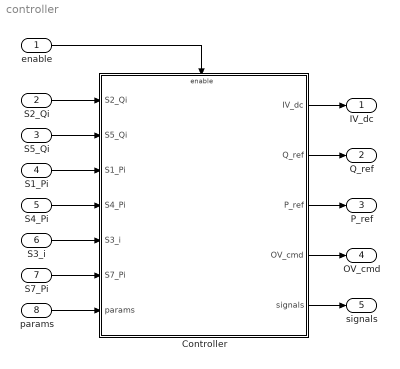
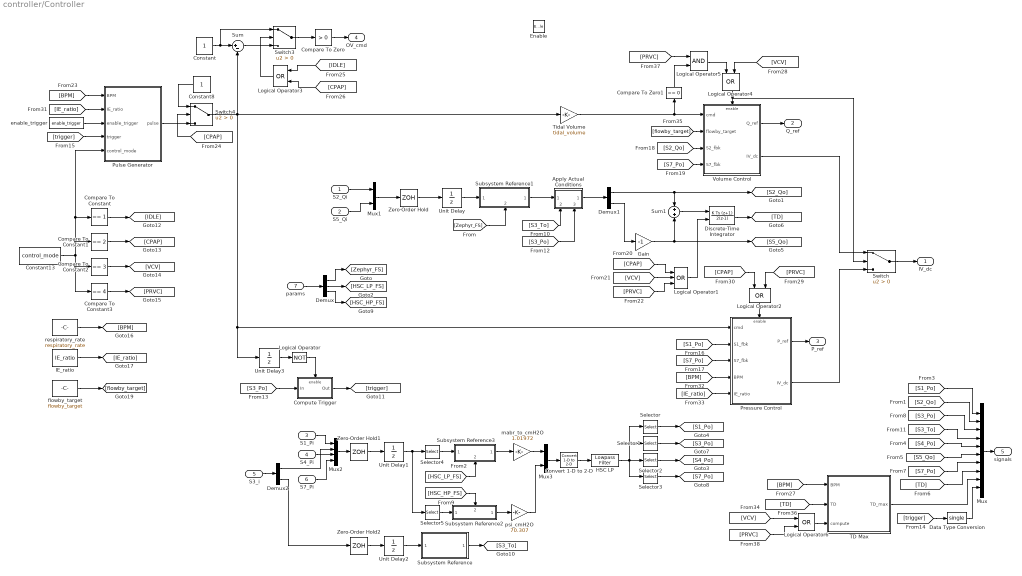
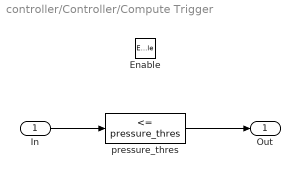
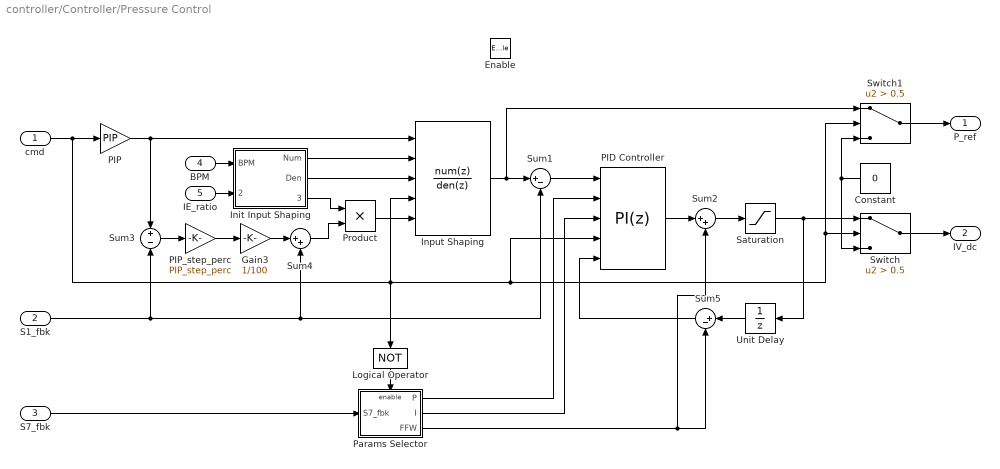
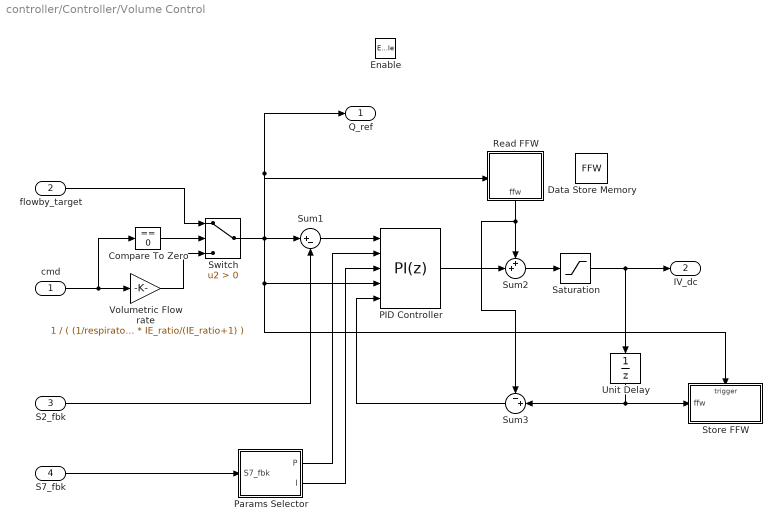
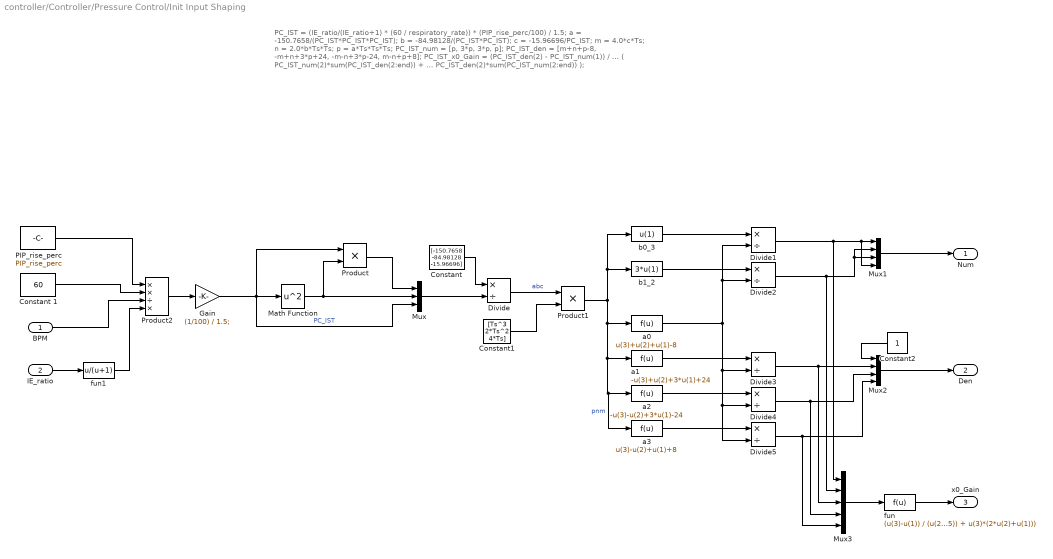
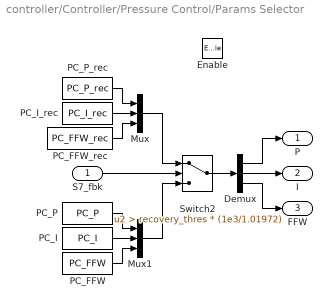
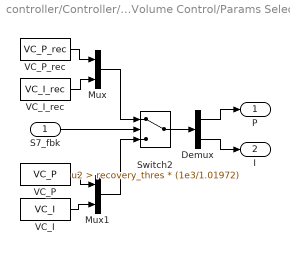
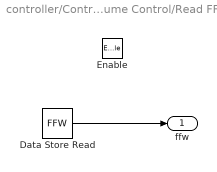
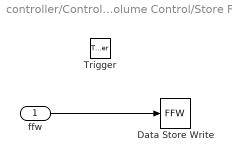
== stateflow chart controller/Controller/TD Max ==
  state IDLE
    entry:
    TD_max = realmax('single');
  state COMPUTE_MAX
    entry:
    tmp_max = TD;
    during:
    tmp_max = max(tmp_max, TD);
  (default) -> IDLE
  IDLE -> COMPUTE_MAX : [compute]
  COMPUTE_MAX -> IDLE [order 1] : [~compute]
  COMPUTE_MAX -> COMPUTE_MAX [order 2] : after(2*(60/BPM), sec)/{TD_max = tmp_max;}
  data: BPM input single; compute input boolean; TD input single; TD_max output single; tmp_max local single

== stateflow chart controller/Controller/Pulse Generator ==
  state TRIGGER_WAIT
    entry:
    pulse = 0;
  state TRIGGER_INSPIRATION
    entry:
    pulse = 1;
  state INSPIRATION
    entry:
    pulse = 1;
  state EXPIRATION
    entry:
    pulse = 0;
  TRIGGER_WAIT -> INSPIRATION [order 2] : [~enable_trigger]
  INSPIRATION -> TRIGGER_WAIT [order 3] : [enable_trigger]
  TRIGGER_INSPIRATION -> TRIGGER_WAIT [order 1] : after(IE_ratio/(IE_ratio+1) * (60/BPM), sec)
  TRIGGER_WAIT -> TRIGGER_INSPIRATION [order 1] : [trigger]
  (default) -> INSPIRATION
  INSPIRATION -> INSPIRATION [order 1] : [hasChanged(control_mode)]
  TRIGGER_INSPIRATION -> INSPIRATION [order 2] : [~enable_trigger]
  INSPIRATION -> EXPIRATION [order 2] : after(IE_ratio/(IE_ratio+1) * (60/BPM), sec)
  EXPIRATION -> INSPIRATION [order 1] : [hasChanged(control_mode)]
  EXPIRATION -> INSPIRATION [order 2] : after(1/(IE_ratio+1) * (60/BPM), sec)
  data: BPM input single; IE_ratio input single; pulse output single; control_mode input; enable_trigger input boolean; trigger input boolean

//
// Non-Degree Granting Education License -- for use at non-degree
// granting, nonprofit, educational organizations only. Not for
// government, commercial, or other organizational use.
//
// File: controller.cpp
//
// Code generated for Simulink model 'controller'.
//
// Model version                  : 1.520
// Simulink Coder version         : 9.3 (R2020a) 18-Nov-2019
// C/C++ source code generated on : Mon May 11 13:55:17 2020
//
// Target selection: ert.tlc
// Embedded hardware selection: Intel->x86-64 (Windows64)
// Code generation objectives: Unspecified
// Validation result: Not run
//
#include "controller.h"
#include "controller_private.h"

// Named constants for Chart: '<S1>/Pulse Generator'
const uint8_T controll_IN_TRIGGER_INSPIRATION = 3U;
const uint8_T controller_IN_EXPIRATION = 1U;
const uint8_T controller_IN_INSPIRATION = 2U;
const uint8_T controller_IN_TRIGGER_WAIT = 4U;

// Named constants for Chart: '<S1>/TD Max'
const uint8_T controller_IN_COMPUTE_MAX = 1U;
const uint8_T controller_IN_IDLE = 2U;
void controllerModelClass::controller_SystemCore_release
  (b_dspcodegen_BiquadFilter_con_T *obj)
{
  if (obj->isInitialized == 1) {
    obj->isInitialized = 2;
  }
}

void controllerModelClass::cont_LPHPFilterBase_releaseImpl
  (dsp_LowpassFilter_controller_T *obj)
{
  controller_SystemCore_release(obj->FilterObj);
  obj->NumChannels = -1;
}

void controllerModelClass::contr_SystemCore_releaseWrapper
  (dsp_LowpassFilter_controller_T *obj)
{
  if (obj->isSetupComplete) {
    cont_LPHPFilterBase_releaseImpl(obj);
  }
}

void controllerModelClass::controller_SystemCore_release_j
  (dsp_LowpassFilter_controller_T *obj)
{
  if (obj->isInitialized == 1) {
    contr_SystemCore_releaseWrapper(obj);
  }
}

void controllerModelClass::controller_SystemCore_delete_j
  (dsp_LowpassFilter_controller_T *obj)
{
  controller_SystemCore_release_j(obj);
}

void controllerModelClass::matlabCodegenHandle_matlabCod_j
  (dsp_LowpassFilter_controller_T *obj)
{
  if (!obj->matlabCodegenIsDeleted) {
    obj->matlabCodegenIsDeleted = true;
    controller_SystemCore_delete_j(obj);
  }
}

void controllerModelClass::controller_SystemCore_delete
  (b_dspcodegen_BiquadFilter_con_T *obj)
{
  controller_SystemCore_release(obj);
}

void controllerModelClass::matlabCodegenHandle_matlabCodeg
  (b_dspcodegen_BiquadFilter_con_T *obj)
{
  if (!obj->matlabCodegenIsDeleted) {
    obj->matlabCodegenIsDeleted = true;
    controller_SystemCore_delete(obj);
  }
}

// Model step function
void controllerModelClass::step()
{
  real32_T rtb_Divide5;
  real32_T rtb_SumFdbk;
  real32_T rtb_IProdOut_d;
  real32_T rtb_SumFdbk_i;
  real32_T rtb_psi_cmH2O;
  real32_T rtb_PIP;
  ZCEventType zcEvent;
  boolean_T rtb_Compare_k;
  boolean_T rtb_LogicalOperator1;
  boolean_T rtb_Compare_m;
  boolean_T rtb_Compare_f;
  real32_T rtb_Divide;
  int32_T i;
  real32_T rtb_TmpSignalConversionAtHSCL_0;
  real32_T rtb_pnm_idx_0;
  real32_T rtb_pnm_idx_1;
  real32_T rtb_pnm_idx_2;
  real32_T rtb_TmpSignalConversionAtHSCL_1;
  real32_T rtb_TmpSignalConversionAtHSCL_2;
  real32_T rtb_TmpSignalConversionAtHSCL_3;

  // Outputs for Enabled SubSystem: '<Root>/Controller' incorporates:
  //   EnablePort: '<S1>/Enable'

  // Inport: '<Root>/enable'
  if (controller_U.enable) {
    if (!controller_DW.Controller_MODE) {
      // InitializeConditions for UnitDelay: '<S1>/Unit Delay1'
      controller_DW.UnitDelay1_DSTATE[0] =
        controller_P.UnitDelay1_InitialCondition[0];
      controller_DW.UnitDelay1_DSTATE[1] =
        controller_P.UnitDelay1_InitialCondition[1];
      controller_DW.UnitDelay1_DSTATE[2] =
        controller_P.UnitDelay1_InitialCondition[2];
      controller_DW.UnitDelay1_DSTATE[3] =
        controller_P.UnitDelay1_InitialCondition[3];

      // InitializeConditions for UnitDelay: '<S1>/Unit Delay2'
      controller_DW.UnitDelay2_DSTATE = controller_P.UnitDelay2_InitialCondition;

      // InitializeConditions for UnitDelay: '<S1>/Unit Delay'
      controller_DW.UnitDelay_DSTATE[0] =
        controller_P.UnitDelay_InitialCondition_g;
      controller_DW.UnitDelay_DSTATE[1] =
        controller_P.UnitDelay_InitialCondition_g;

      // InitializeConditions for UnitDelay: '<S1>/Unit Delay3'
      controller_DW.UnitDelay3_DSTATE = controller_P.UnitDelay3_InitialCondition;

      // InitializeConditions for DiscreteIntegrator: '<S1>/Discrete-Time Integrator' 
      controller_DW.DiscreteTimeIntegrator_DSTATE =
        controller_P.DiscreteTimeIntegrator_IC;
      controller_DW.DiscreteTimeIntegrator_PrevRese = 2;

      // InitializeConditions for MATLABSystem: '<S1>/HSC LP'
      if (controller_DW.obj.FilterObj->isInitialized == 1) {
        // System object Initialization function: dsp.BiquadFilter
        for (i = 0; i < 16; i++) {
          controller_DW.obj.FilterObj->cSFunObject.W0_ZERO_STATES[i] =
            controller_DW.obj.FilterObj->cSFunObject.P0_ICRTP;
        }

        for (i = 0; i < 16; i++) {
          controller_DW.obj.FilterObj->cSFunObject.W1_POLE_STATES[i] =
            controller_DW.obj.FilterObj->cSFunObject.P5_IC2RTP;
        }
      }

      // End of InitializeConditions for MATLABSystem: '<S1>/HSC LP'

      // SystemReset for Chart: '<S1>/Pulse Generator'
      controller_DW.doneDoubleBufferReInit = false;

      // Chart: '<S1>/Pulse Generator'
      controller_DW.is_c3_controller = controller_IN_INSPIRATION;
      controller_DW.temporalCounter_i1_c = 0U;

      // SystemReset for Chart: '<S1>/TD Max'
      controller_DW.temporalCounter_i1 = 0U;

      // Chart: '<S1>/TD Max'
      controller_DW.is_c1_controller = controller_IN_IDLE;
      controller_B.TD_max = 3.402823466E+38F;

      // Enable for Chart: '<S1>/Pulse Generator'
      controller_DW.presentTicks_j = (&controller_M)->Timing.clockTick0;
      controller_DW.previousTicks_j = controller_DW.presentTicks_j;

      // Enable for Chart: '<S1>/TD Max'
      controller_DW.presentTicks = (&controller_M)->Timing.clockTick0;
      controller_DW.previousTicks = controller_DW.presentTicks;
      controller_DW.Controller_MODE = true;
    }

    // SignalConversion generated from: '<S1>/HSC LP' incorporates:
    //   Bias: '<S15>/Bias'
    //   Bias: '<S16>/Bias'
    //   Gain: '<S15>/Gain'
    //   Gain: '<S15>/Gain1'
    //   Gain: '<S16>/Gain'
    //   Gain: '<S16>/Gain1'
    //   Gain: '<S1>/mabr_to_cmH2O'
    //   Gain: '<S1>/psi_cmH2O'
    //   Inport: '<Root>/params'
    //   Product: '<S15>/Product'
    //   Product: '<S16>/Product'
    //   Sum: '<S16>/Sum'
    //   UnitDelay: '<S1>/Unit Delay1'

    rtb_TmpSignalConversionAtHSCL_1 = ((controller_P.Gain_Gain_h *
      controller_DW.UnitDelay1_DSTATE[0] + controller_P.Bias_Bias) *
      controller_U.params[1] * controller_P.Gain1_Gain - controller_U.params[1])
      * controller_P.mabr_to_cmH2O_Gain;
    rtb_TmpSignalConversionAtHSCL_2 = ((controller_P.Gain_Gain_h *
      controller_DW.UnitDelay1_DSTATE[1] + controller_P.Bias_Bias) *
      controller_U.params[1] * controller_P.Gain1_Gain - controller_U.params[1])
      * controller_P.mabr_to_cmH2O_Gain;
    rtb_TmpSignalConversionAtHSCL_3 = ((controller_P.Gain_Gain_h *
      controller_DW.UnitDelay1_DSTATE[2] + controller_P.Bias_Bias) *
      controller_U.params[1] * controller_P.Gain1_Gain - controller_U.params[1])
      * controller_P.mabr_to_cmH2O_Gain;
    rtb_TmpSignalConversionAtHSCL_0 = (controller_P.Gain_Gain_i *
      controller_DW.UnitDelay1_DSTATE[3] + controller_P.Bias_Bias_h) *
      controller_U.params[2] * controller_P.Gain1_Gain_d *
      controller_P.psi_cmH2O_Gain;

    // MATLABSystem: '<S1>/HSC LP'
    if (controller_DW.obj.FilterObj->isInitialized != 1) {
      controller_DW.obj.FilterObj->isSetupComplete = false;
      controller_DW.obj.FilterObj->isInitialized = 1;
      controller_DW.obj.FilterObj->isSetupComplete = true;

      // System object Initialization function: dsp.BiquadFilter
      for (i = 0; i < 16; i++) {
        controller_DW.obj.FilterObj->cSFunObject.W0_ZERO_STATES[i] =
          controller_DW.obj.FilterObj->cSFunObject.P0_ICRTP;
      }

      for (i = 0; i < 16; i++) {
        controller_DW.obj.FilterObj->cSFunObject.W1_POLE_STATES[i] =
          controller_DW.obj.FilterObj->cSFunObject.P5_IC2RTP;
      }
    }

    // System object Outputs function: dsp.BiquadFilter
    rtb_Divide = controller_DW.obj.FilterObj->cSFunObject.P1_RTP1COEFF[0] *
      rtb_TmpSignalConversionAtHSCL_1;
    rtb_Divide += controller_DW.obj.FilterObj->cSFunObject.P1_RTP1COEFF[1] *
      controller_DW.obj.FilterObj->cSFunObject.W0_ZERO_STATES[0];
    rtb_Divide += controller_DW.obj.FilterObj->cSFunObject.P1_RTP1COEFF[2] *
      controller_DW.obj.FilterObj->cSFunObject.W0_ZERO_STATES[1];
    rtb_SumFdbk_i = rtb_Divide -
      controller_DW.obj.FilterObj->cSFunObject.P2_RTP2COEFF[0] *
      controller_DW.obj.FilterObj->cSFunObject.W1_POLE_STATES[0];
    rtb_SumFdbk_i -= controller_DW.obj.FilterObj->cSFunObject.P2_RTP2COEFF[1] *
      controller_DW.obj.FilterObj->cSFunObject.W1_POLE_STATES[1];
    controller_DW.obj.FilterObj->cSFunObject.W0_ZERO_STATES[1] =
      controller_DW.obj.FilterObj->cSFunObject.W0_ZERO_STATES[0];
    controller_DW.obj.FilterObj->cSFunObject.W0_ZERO_STATES[0] =
      rtb_TmpSignalConversionAtHSCL_1;
    controller_DW.obj.FilterObj->cSFunObject.W1_POLE_STATES[1] =
      controller_DW.obj.FilterObj->cSFunObject.W1_POLE_STATES[0];
    controller_DW.obj.FilterObj->cSFunObject.W1_POLE_STATES[0] = rtb_SumFdbk_i;
    rtb_psi_cmH2O = rtb_SumFdbk_i;
    rtb_Divide = controller_DW.obj.FilterObj->cSFunObject.P1_RTP1COEFF[3] *
      rtb_SumFdbk_i;
    rtb_Divide += controller_DW.obj.FilterObj->cSFunObject.P1_RTP1COEFF[4] *
      controller_DW.obj.FilterObj->cSFunObject.W0_ZERO_STATES[2];
    rtb_Divide += controller_DW.obj.FilterObj->cSFunObject.P1_RTP1COEFF[5] *
      controller_DW.obj.FilterObj->cSFunObject.W0_ZERO_STATES[3];
    rtb_SumFdbk_i = rtb_Divide -
      controller_DW.obj.FilterObj->cSFunObject.P2_RTP2COEFF[2] *
      controller_DW.obj.FilterObj->cSFunObject.W1_POLE_STATES[2];
    rtb_SumFdbk_i -= controller_DW.obj.FilterObj->cSFunObject.P2_RTP2COEFF[3] *
      controller_DW.obj.FilterObj->cSFunObject.W1_POLE_STATES[3];
    controller_DW.obj.FilterObj->cSFunObject.W0_ZERO_STATES[3] =
      controller_DW.obj.FilterObj->cSFunObject.W0_ZERO_STATES[2];
    controller_DW.obj.FilterObj->cSFunObject.W0_ZERO_STATES[2] = rtb_psi_cmH2O;
    controller_DW.obj.FilterObj->cSFunObject.W1_POLE_STATES[3] =
      controller_DW.obj.FilterObj->cSFunObject.W1_POLE_STATES[2];
    controller_DW.obj.FilterObj->cSFunObject.W1_POLE_STATES[2] = rtb_SumFdbk_i;
    rtb_TmpSignalConversionAtHSCL_1 = rtb_SumFdbk_i;
    rtb_Divide = controller_DW.obj.FilterObj->cSFunObject.P1_RTP1COEFF[0] *
      rtb_TmpSignalConversionAtHSCL_2;
    rtb_Divide += controller_DW.obj.FilterObj->cSFunObject.P1_RTP1COEFF[1] *
      controller_DW.obj.FilterObj->cSFunObject.W0_ZERO_STATES[4];
    rtb_Divide += controller_DW.obj.FilterObj->cSFunObject.P1_RTP1COEFF[2] *
      controller_DW.obj.FilterObj->cSFunObject.W0_ZERO_STATES[5];
    rtb_SumFdbk_i = rtb_Divide -
      controller_DW.obj.FilterObj->cSFunObject.P2_RTP2COEFF[0] *
      controller_DW.obj.FilterObj->cSFunObject.W1_POLE_STATES[4];
    rtb_SumFdbk_i -= controller_DW.obj.FilterObj->cSFunObject.P2_RTP2COEFF[1] *
      controller_DW.obj.FilterObj->cSFunObject.W1_POLE_STATES[5];
    controller_DW.obj.FilterObj->cSFunObject.W0_ZERO_STATES[5] =
      controller_DW.obj.FilterObj->cSFunObject.W0_ZERO_STATES[4];
    controller_DW.obj.FilterObj->cSFunObject.W0_ZERO_STATES[4] =
      rtb_TmpSignalConversionAtHSCL_2;
    controller_DW.obj.FilterObj->cSFunObject.W1_POLE_STATES[5] =
      controller_DW.obj.FilterObj->cSFunObject.W1_POLE_STATES[4];
    controller_DW.obj.FilterObj->cSFunObject.W1_POLE_STATES[4] = rtb_SumFdbk_i;
    rtb_psi_cmH2O = rtb_SumFdbk_i;
    rtb_Divide = controller_DW.obj.FilterObj->cSFunObject.P1_RTP1COEFF[3] *
      rtb_SumFdbk_i;
    rtb_Divide += controller_DW.obj.FilterObj->cSFunObject.P1_RTP1COEFF[4] *
      controller_DW.obj.FilterObj->cSFunObject.W0_ZERO_STATES[6];
    rtb_Divide += controller_DW.obj.FilterObj->cSFunObject.P1_RTP1COEFF[5] *
      controller_DW.obj.FilterObj->cSFunObject.W0_ZERO_STATES[7];
    rtb_SumFdbk_i = rtb_Divide -
      controller_DW.obj.FilterObj->cSFunObject.P2_RTP2COEFF[2] *
      controller_DW.obj.FilterObj->cSFunObject.W1_POLE_STATES[6];
    rtb_SumFdbk_i -= controller_DW.obj.FilterObj->cSFunObject.P2_RTP2COEFF[3] *
      controller_DW.obj.FilterObj->cSFunObject.W1_POLE_STATES[7];
    controller_DW.obj.FilterObj->cSFunObject.W0_ZERO_STATES[7] =
      controller_DW.obj.FilterObj->cSFunObject.W0_ZERO_STATES[6];
    controller_DW.obj.FilterObj->cSFunObject.W0_ZERO_STATES[6] = rtb_psi_cmH2O;
    controller_DW.obj.FilterObj->cSFunObject.W1_POLE_STATES[7] =
      controller_DW.obj.FilterObj->cSFunObject.W1_POLE_STATES[6];
    controller_DW.obj.FilterObj->cSFunObject.W1_POLE_STATES[6] = rtb_SumFdbk_i;
    rtb_IProdOut_d = rtb_SumFdbk_i;
    rtb_Divide = controller_DW.obj.FilterObj->cSFunObject.P1_RTP1COEFF[0] *
      rtb_TmpSignalConversionAtHSCL_3;
    rtb_Divide += controller_DW.obj.FilterObj->cSFunObject.P1_RTP1COEFF[1] *
      controller_DW.obj.FilterObj->cSFunObject.W0_ZERO_STATES[8];
    rtb_Divide += controller_DW.obj.FilterObj->cSFunObject.P1_RTP1COEFF[2] *
      controller_DW.obj.FilterObj->cSFunObject.W0_ZERO_STATES[9];
    rtb_SumFdbk_i = rtb_Divide -
      controller_DW.obj.FilterObj->cSFunObject.P2_RTP2COEFF[0] *
      controller_DW.obj.FilterObj->cSFunObject.W1_POLE_STATES[8];
    rtb_SumFdbk_i -= controller_DW.obj.FilterObj->cSFunObject.P2_RTP2COEFF[1] *
      controller_DW.obj.FilterObj->cSFunObject.W1_POLE_STATES[9];
    controller_DW.obj.FilterObj->cSFunObject.W0_ZERO_STATES[9] =
      controller_DW.obj.FilterObj->cSFunObject.W0_ZERO_STATES[8];
    controller_DW.obj.FilterObj->cSFunObject.W0_ZERO_STATES[8] =
      rtb_TmpSignalConversionAtHSCL_3;
    controller_DW.obj.FilterObj->cSFunObject.W1_POLE_STATES[9] =
      controller_DW.obj.FilterObj->cSFunObject.W1_POLE_STATES[8];
    controller_DW.obj.FilterObj->cSFunObject.W1_POLE_STATES[8] = rtb_SumFdbk_i;
    rtb_psi_cmH2O = rtb_SumFdbk_i;
    rtb_Divide = controller_DW.obj.FilterObj->cSFunObject.P1_RTP1COEFF[3] *
      rtb_SumFdbk_i;
    rtb_Divide += controller_DW.obj.FilterObj->cSFunObject.P1_RTP1COEFF[4] *
      controller_DW.obj.FilterObj->cSFunObject.W0_ZERO_STATES[10];
    rtb_Divide += controller_DW.obj.FilterObj->cSFunObject.P1_RTP1COEFF[5] *
      controller_DW.obj.FilterObj->cSFunObject.W0_ZERO_STATES[11];
    rtb_SumFdbk_i = rtb_Divide -
      controller_DW.obj.FilterObj->cSFunObject.P2_RTP2COEFF[2] *
      controller_DW.obj.FilterObj->cSFunObject.W1_POLE_STATES[10];
    rtb_SumFdbk_i -= controller_DW.obj.FilterObj->cSFunObject.P2_RTP2COEFF[3] *
      controller_DW.obj.FilterObj->cSFunObject.W1_POLE_STATES[11];
    controller_DW.obj.FilterObj->cSFunObject.W0_ZERO_STATES[11] =
      controller_DW.obj.FilterObj->cSFunObject.W0_ZERO_STATES[10];
    controller_DW.obj.FilterObj->cSFunObject.W0_ZERO_STATES[10] = rtb_psi_cmH2O;
    controller_DW.obj.FilterObj->cSFunObject.W1_POLE_STATES[11] =
      controller_DW.obj.FilterObj->cSFunObject.W1_POLE_STATES[10];
    controller_DW.obj.FilterObj->cSFunObject.W1_POLE_STATES[10] = rtb_SumFdbk_i;

    // Outport: '<Root>/signals' incorporates:
    //   MATLABSystem: '<S1>/HSC LP'
    //   SignalConversion generated from: '<S1>/signals'

    controller_Y.signals[4] = rtb_SumFdbk_i;

    // MATLABSystem: '<S1>/HSC LP'
    rtb_Divide = controller_DW.obj.FilterObj->cSFunObject.P1_RTP1COEFF[0] *
      rtb_TmpSignalConversionAtHSCL_0;
    rtb_Divide += controller_DW.obj.FilterObj->cSFunObject.P1_RTP1COEFF[1] *
      controller_DW.obj.FilterObj->cSFunObject.W0_ZERO_STATES[12];
    rtb_Divide += controller_DW.obj.FilterObj->cSFunObject.P1_RTP1COEFF[2] *
      controller_DW.obj.FilterObj->cSFunObject.W0_ZERO_STATES[13];
    rtb_SumFdbk_i = rtb_Divide -
      controller_DW.obj.FilterObj->cSFunObject.P2_RTP2COEFF[0] *
      controller_DW.obj.FilterObj->cSFunObject.W1_POLE_STATES[12];
    rtb_SumFdbk_i -= controller_DW.obj.FilterObj->cSFunObject.P2_RTP2COEFF[1] *
      controller_DW.obj.FilterObj->cSFunObject.W1_POLE_STATES[13];
    controller_DW.obj.FilterObj->cSFunObject.W0_ZERO_STATES[13] =
      controller_DW.obj.FilterObj->cSFunObject.W0_ZERO_STATES[12];
    controller_DW.obj.FilterObj->cSFunObject.W0_ZERO_STATES[12] =
      rtb_TmpSignalConversionAtHSCL_0;
    controller_DW.obj.FilterObj->cSFunObject.W1_POLE_STATES[13] =
      controller_DW.obj.FilterObj->cSFunObject.W1_POLE_STATES[12];
    controller_DW.obj.FilterObj->cSFunObject.W1_POLE_STATES[12] = rtb_SumFdbk_i;
    rtb_psi_cmH2O = rtb_SumFdbk_i;
    rtb_Divide = controller_DW.obj.FilterObj->cSFunObject.P1_RTP1COEFF[3] *
      rtb_SumFdbk_i;
    rtb_Divide += controller_DW.obj.FilterObj->cSFunObject.P1_RTP1COEFF[4] *
      controller_DW.obj.FilterObj->cSFunObject.W0_ZERO_STATES[14];
    rtb_Divide += controller_DW.obj.FilterObj->cSFunObject.P1_RTP1COEFF[5] *
      controller_DW.obj.FilterObj->cSFunObject.W0_ZERO_STATES[15];
    rtb_SumFdbk_i = rtb_Divide -
      controller_DW.obj.FilterObj->cSFunObject.P2_RTP2COEFF[2] *
      controller_DW.obj.FilterObj->cSFunObject.W1_POLE_STATES[14];
    rtb_SumFdbk_i -= controller_DW.obj.FilterObj->cSFunObject.P2_RTP2COEFF[3] *
      controller_DW.obj.FilterObj->cSFunObject.W1_POLE_STATES[15];
    controller_DW.obj.FilterObj->cSFunObject.W0_ZERO_STATES[15] =
      controller_DW.obj.FilterObj->cSFunObject.W0_ZERO_STATES[14];
    controller_DW.obj.FilterObj->cSFunObject.W0_ZERO_STATES[14] = rtb_psi_cmH2O;
    controller_DW.obj.FilterObj->cSFunObject.W1_POLE_STATES[15] =
      controller_DW.obj.FilterObj->cSFunObject.W1_POLE_STATES[14];
    controller_DW.obj.FilterObj->cSFunObject.W1_POLE_STATES[14] = rtb_SumFdbk_i;
    rtb_TmpSignalConversionAtHSCL_0 = rtb_SumFdbk_i;

    // Bias: '<S13>/Bias' incorporates:
    //   Gain: '<S13>/Gain'
    //   UnitDelay: '<S1>/Unit Delay2'

    rtb_SumFdbk_i = controller_P.Gain_Gain_m * controller_DW.UnitDelay2_DSTATE +
      controller_P.Bias_Bias_b;

    // Product: '<S2>/Divide1' incorporates:
    //   Bias: '<S2>/Bias'
    //   Constant: '<S2>/Constant1'
    //   Gain: '<S2>/cmH2O to Pa'
    //   MATLABSystem: '<S1>/HSC LP'

    rtb_psi_cmH2O = controller_P.Constant1_Value_k /
      (controller_P.cmH2OtoPa_Gain * rtb_IProdOut_d + controller_P.Bias_Bias_j);

    // Product: '<S2>/Divide' incorporates:
    //   Bias: '<S2>/K'
    //   Constant: '<S2>/Constant'

    rtb_Divide = (rtb_SumFdbk_i + controller_P.K_Bias) /
      controller_P.Constant_Value_h;

    // Product: '<S2>/Product1' incorporates:
    //   Bias: '<S14>/Bias'
    //   Gain: '<S14>/Gain'
    //   Gain: '<S14>/Gain1'
    //   Inport: '<Root>/params'
    //   Product: '<S14>/Product'
    //   Product: '<S2>/Product'
    //   UnitDelay: '<S1>/Unit Delay'

    rtb_TmpSignalConversionAtHSCL_3 = (controller_P.Gain_Gain_f *
      controller_DW.UnitDelay_DSTATE[0] + controller_P.Bias_Bias_l) *
      controller_U.params[0] * controller_P.Gain1_Gain_e * rtb_Divide *
      rtb_psi_cmH2O;

    // Outputs for Enabled SubSystem: '<S1>/Compute Trigger' incorporates:
    //   EnablePort: '<S9>/Enable'

    // Logic: '<S1>/Logical Operator' incorporates:
    //   UnitDelay: '<S1>/Unit Delay3'

    if (!(controller_DW.UnitDelay3_DSTATE != 0.0F)) {
      controller_DW.ComputeTrigger_MODE = true;

      // RelationalOperator: '<S19>/Compare' incorporates:
      //   Constant: '<S19>/Constant'
      //   MATLABSystem: '<S1>/HSC LP'

      controller_B.Compare_m = (rtb_IProdOut_d <=
        controller_P.pressure_thres_const);
    } else {
      if (controller_DW.ComputeTrigger_MODE) {
        // Disable for Outport: '<S9>/Out'
        controller_B.Compare_m = controller_P.Out_Y0;
        controller_DW.ComputeTrigger_MODE = false;
      }
    }

    // End of Logic: '<S1>/Logical Operator'
    // End of Outputs for SubSystem: '<S1>/Compute Trigger'

    // Gain: '<S1>/Gain' incorporates:
    //   Bias: '<S14>/Bias'
    //   Gain: '<S14>/Gain'
    //   Gain: '<S14>/Gain1'
    //   Inport: '<Root>/params'
    //   Product: '<S14>/Product'
    //   Product: '<S2>/Product'
    //   Product: '<S2>/Product1'
    //   UnitDelay: '<S1>/Unit Delay'

    rtb_TmpSignalConversionAtHSCL_2 = (controller_P.Gain_Gain_f *
      controller_DW.UnitDelay_DSTATE[1] + controller_P.Bias_Bias_l) *
      controller_U.params[0] * controller_P.Gain1_Gain_e * rtb_Divide *
      rtb_psi_cmH2O * controller_P.Gain_Gain_e;

    // RelationalOperator: '<S4>/Compare' incorporates:
    //   Constant: '<S4>/Constant'

    rtb_Compare_k = (controller_P.Controller_control_mode ==
                     controller_P.CompareToConstant1_const);

    // RelationalOperator: '<S5>/Compare' incorporates:
    //   Constant: '<S5>/Constant'

    rtb_Compare_m = (controller_P.Controller_control_mode ==
                     controller_P.CompareToConstant2_const);

    // RelationalOperator: '<S6>/Compare' incorporates:
    //   Constant: '<S6>/Constant'

    rtb_Compare_f = (controller_P.Controller_control_mode ==
                     controller_P.CompareToConstant3_const);

    // Logic: '<S1>/Logical Operator1'
    rtb_LogicalOperator1 = (rtb_Compare_k || rtb_Compare_m || rtb_Compare_f);

    // DiscreteIntegrator: '<S1>/Discrete-Time Integrator' incorporates:
    //   Sum: '<S1>/Sum1'

    if (rtb_LogicalOperator1 && (controller_DW.DiscreteTimeIntegrator_PrevRese <=
         0)) {
      controller_DW.DiscreteTimeIntegrator_DSTATE =
        controller_P.DiscreteTimeIntegrator_IC;
    }

    rtb_psi_cmH2O = controller_P.DiscreteTimeIntegrator_gainval *
      (rtb_TmpSignalConversionAtHSCL_3 + rtb_TmpSignalConversionAtHSCL_2);
    controller_B.DiscreteTimeIntegrator = rtb_psi_cmH2O +
      controller_DW.DiscreteTimeIntegrator_DSTATE;

    // End of DiscreteIntegrator: '<S1>/Discrete-Time Integrator'

    // Chart: '<S1>/Pulse Generator' incorporates:
    //   Constant: '<S1>/IE_ratio'
    //   Constant: '<S1>/enable_trigger'
    //   Constant: '<S1>/respiratory_rate'

    controller_DW.presentTicks_j = (&controller_M)->Timing.clockTick0;
    controller_DW.elapsedTicks_i = controller_DW.presentTicks_j -
      controller_DW.previousTicks_j;
    controller_DW.previousTicks_j = controller_DW.presentTicks_j;
    controller_DW.temporalCounter_i1_c += controller_DW.elapsedTicks_i;
    controller_DW.control_mode_prev = controller_DW.control_mode_start;
    controller_DW.control_mode_start = controller_P.Controller_control_mode;
    if (!controller_DW.doneDoubleBufferReInit) {
      controller_DW.doneDoubleBufferReInit = true;
      controller_DW.control_mode_prev = controller_P.Controller_control_mode;
    }

    switch (controller_DW.is_c3_controller) {
     case controller_IN_EXPIRATION:
      controller_B.pulse = 0.0F;
      if ((controller_DW.control_mode_prev != controller_DW.control_mode_start) ||
          (controller_DW.temporalCounter_i1_c >= 1.0F /
           (controller_P.IE_ratio_Value + 1.0F) * (60.0F /
            controller_P.respiratory_rate_Value) * 100.0F)) {
        controller_DW.is_c3_controller = controller_IN_INSPIRATION;
        controller_DW.temporalCounter_i1_c = 0U;
        controller_B.pulse = 1.0F;
      }
      break;

     case controller_IN_INSPIRATION:
      controller_B.pulse = 1.0F;
      if (controller_DW.control_mode_prev != controller_DW.control_mode_start) {
        controller_DW.is_c3_controller = controller_IN_INSPIRATION;
        controller_DW.temporalCounter_i1_c = 0U;
        controller_B.pulse = 1.0F;
      } else if (controller_DW.temporalCounter_i1_c >=
                 controller_P.IE_ratio_Value / (controller_P.IE_ratio_Value +
                  1.0F) * (60.0F / controller_P.respiratory_rate_Value) * 100.0F)
      {
        controller_DW.is_c3_controller = controller_IN_EXPIRATION;
        controller_DW.temporalCounter_i1_c = 0U;
        controller_B.pulse = 0.0F;
      } else {
        if (controller_P.enable_trigger_Value) {
          controller_DW.is_c3_controller = controller_IN_TRIGGER_WAIT;
          controller_B.pulse = 0.0F;
        }
      }
      break;

     case controll_IN_TRIGGER_INSPIRATION:
      controller_B.pulse = 1.0F;
      if (controller_DW.temporalCounter_i1_c >= controller_P.IE_ratio_Value /
          (controller_P.IE_ratio_Value + 1.0F) * (60.0F /
           controller_P.respiratory_rate_Value) * 100.0F) {
        controller_DW.is_c3_controller = controller_IN_TRIGGER_WAIT;
        controller_B.pulse = 0.0F;
      } else {
        if (!controller_P.enable_trigger_Value) {
          controller_DW.is_c3_controller = controller_IN_INSPIRATION;
          controller_DW.temporalCounter_i1_c = 0U;
          controller_B.pulse = 1.0F;
        }
      }
      break;

     default:
      // case IN_TRIGGER_WAIT:
      controller_B.pulse = 0.0F;
      if (controller_B.Compare_m) {
        controller_DW.is_c3_controller = controll_IN_TRIGGER_INSPIRATION;
        controller_DW.temporalCounter_i1_c = 0U;
        controller_B.pulse = 1.0F;
      } else {
        if (!controller_P.enable_trigger_Value) {
          controller_DW.is_c3_controller = controller_IN_INSPIRATION;
          controller_DW.temporalCounter_i1_c = 0U;
          controller_B.pulse = 1.0F;
        }
      }
      break;
    }

    // Logic: '<S1>/Logical Operator6'
    controller_B.LogicalOperator6 = (rtb_Compare_m || rtb_Compare_f);

    // Chart: '<S1>/TD Max' incorporates:
    //   Constant: '<S1>/respiratory_rate'

    controller_DW.presentTicks = (&controller_M)->Timing.clockTick0;
    controller_DW.elapsedTicks = controller_DW.presentTicks -
      controller_DW.previousTicks;
    controller_DW.previousTicks = controller_DW.presentTicks;
    controller_DW.temporalCounter_i1 += controller_DW.elapsedTicks;
    if (controller_DW.is_c1_controller == 1) {
      if (!controller_B.LogicalOperator6) {
        controller_DW.is_c1_controller = controller_IN_IDLE;
        controller_B.TD_max = 3.402823466E+38F;
      } else if (controller_DW.temporalCounter_i1 >= 60.0F /
                 controller_P.respiratory_rate_Value * 2.0F * 100.0F) {
        controller_B.TD_max = controller_DW.tmp_max;
        controller_DW.is_c1_controller = controller_IN_COMPUTE_MAX;
        controller_DW.temporalCounter_i1 = 0U;
        controller_DW.tmp_max = controller_B.DiscreteTimeIntegrator;
      } else {
        if ((!(controller_DW.tmp_max > controller_B.DiscreteTimeIntegrator)) &&
            (!rtIsNaNF(controller_B.DiscreteTimeIntegrator))) {
          controller_DW.tmp_max = controller_B.DiscreteTimeIntegrator;
        }
      }
    } else {
      // case IN_IDLE:
      if (controller_B.LogicalOperator6) {
        controller_DW.is_c1_controller = controller_IN_COMPUTE_MAX;
        controller_DW.temporalCounter_i1 = 0U;
        controller_DW.tmp_max = controller_B.DiscreteTimeIntegrator;
      }
    }

    // Outport: '<Root>/signals' incorporates:
    //   DataTypeConversion: '<S1>/Data Type Conversion'
    //   MATLABSystem: '<S1>/HSC LP'
    //   SignalConversion generated from: '<S1>/signals'

    controller_Y.signals[0] = rtb_TmpSignalConversionAtHSCL_1;
    controller_Y.signals[1] = rtb_TmpSignalConversionAtHSCL_3;
    controller_Y.signals[2] = rtb_IProdOut_d;
    controller_Y.signals[3] = rtb_SumFdbk_i;
    controller_Y.signals[5] = rtb_TmpSignalConversionAtHSCL_2;
    controller_Y.signals[6] = rtb_TmpSignalConversionAtHSCL_0;
    controller_Y.signals[7] = controller_B.DiscreteTimeIntegrator;
    controller_Y.signals[8] = controller_B.TD_max;
    controller_Y.signals[9] = controller_B.Compare_m;

    // Switch: '<S1>/Switch4' incorporates:
    //   Constant: '<S1>/Constant8'

    if (rtb_Compare_k) {
      rtb_Divide = controller_P.Constant8_Value;
    } else {
      rtb_Divide = controller_B.pulse;
    }

    // End of Switch: '<S1>/Switch4'

    // Switch: '<S1>/Switch3' incorporates:
    //   Constant: '<S1>/Constant'
    //   Constant: '<S3>/Constant'
    //   Logic: '<S1>/Logical Operator3'
    //   RelationalOperator: '<S3>/Compare'
    //   Sum: '<S1>/Sum'

    if ((controller_P.Controller_control_mode ==
         controller_P.CompareToConstant_const) || rtb_Compare_k) {
      rtb_SumFdbk_i = controller_P.Constant_Value_a;
    } else {
      rtb_SumFdbk_i = controller_P.Constant_Value_a - rtb_Divide;
    }

    // End of Switch: '<S1>/Switch3'

    // Outport: '<Root>/OV_cmd' incorporates:
    //   Constant: '<S7>/Constant'
    //   RelationalOperator: '<S7>/Compare'

    controller_Y.OV_cmd = (rtb_SumFdbk_i > controller_P.Constant_Value_p);

    // Outputs for Enabled SubSystem: '<S1>/Pressure Control' incorporates:
    //   EnablePort: '<S11>/Enable'

    // Logic: '<S1>/Logical Operator2' incorporates:
    //   Logic: '<S11>/Logical Operator'

    if (rtb_Compare_k || rtb_Compare_f) {
      if (!controller_DW.PressureControl_MODE) {
        // InitializeConditions for DiscreteFilter: '<S11>/Input Shaping'
        controller_DW.InputShaping_icLoad = 1U;

        // InitializeConditions for UnitDelay: '<S11>/Unit Delay'
        controller_DW.UnitDelay_DSTATE_o =
          controller_P.UnitDelay_InitialCondition;

        // InitializeConditions for DiscreteIntegrator: '<S54>/Integrator'
        controller_DW.Integrator_DSTATE_p =
          controller_P.PIDController_InitialConditionF;
        controller_DW.Integrator_PrevResetState_f = 2;
        controller_DW.PressureControl_MODE = true;
      }

      // Gain: '<S11>/PIP'
      rtb_PIP = controller_P.PIP_Gain * rtb_Divide;

      // Gain: '<S20>/Gain' incorporates:
      //   Constant: '<S1>/IE_ratio'
      //   Constant: '<S1>/respiratory_rate'
      //   Constant: '<S20>/Constant 1'
      //   Constant: '<S20>/PIP_rise_perc'
      //   Fcn: '<S20>/fun1'
      //   Product: '<S20>/Product2'

      rtb_IProdOut_d = controller_P.PIP_rise_perc_Value *
        controller_P.Constant1_Value / controller_P.respiratory_rate_Value *
        (controller_P.IE_ratio_Value / (controller_P.IE_ratio_Value + 1.0F)) *
        controller_P.Gain_Gain;

      // Math: '<S20>/Math Function'
      rtb_SumFdbk_i = rtb_IProdOut_d * rtb_IProdOut_d;

      // Product: '<S20>/Product1' incorporates:
      //   Constant: '<S20>/Constant'
      //   Constant: '<S20>/Constant1'
      //   Product: '<S20>/Divide'
      //   Product: '<S20>/Product'

      rtb_pnm_idx_0 = controller_P.Constant_Value_e[0] / (rtb_IProdOut_d *
        rtb_SumFdbk_i) * controller_P.Constant1_Value_n[0];
      rtb_pnm_idx_1 = controller_P.Constant_Value_e[1] / rtb_SumFdbk_i *
        controller_P.Constant1_Value_n[1];
      rtb_pnm_idx_2 = controller_P.Constant_Value_e[2] / rtb_IProdOut_d *
        controller_P.Constant1_Value_n[2];

      // Fcn: '<S20>/a0'
      rtb_Divide5 = ((rtb_pnm_idx_2 + rtb_pnm_idx_1) + rtb_pnm_idx_0) - 8.0F;

      // Product: '<S20>/Divide1' incorporates:
      //   Fcn: '<S20>/b0_3'

      rtb_IProdOut_d = rtb_pnm_idx_0 / rtb_Divide5;

      // Product: '<S20>/Divide2' incorporates:
      //   Fcn: '<S20>/b1_2'

      rtb_SumFdbk_i = 3.0F * rtb_pnm_idx_0 / rtb_Divide5;

      // Product: '<S20>/Divide3' incorporates:
      //   Fcn: '<S20>/a1'

      rtb_TmpSignalConversionAtHSCL_2 = (((-rtb_pnm_idx_2 + rtb_pnm_idx_1) +
        3.0F * rtb_pnm_idx_0) + 24.0F) / rtb_Divide5;

      // Product: '<S20>/Divide4' incorporates:
      //   Fcn: '<S20>/a2'

      rtb_SumFdbk = (((-rtb_pnm_idx_2 - rtb_pnm_idx_1) + 3.0F * rtb_pnm_idx_0) -
                     24.0F) / rtb_Divide5;

      // Product: '<S20>/Divide5' incorporates:
      //   Fcn: '<S20>/a3'

      rtb_Divide5 = (((rtb_pnm_idx_2 - rtb_pnm_idx_1) + rtb_pnm_idx_0) + 8.0F) /
        rtb_Divide5;

      // SignalConversion generated from: '<S11>/Input Shaping'
      controller_B.TmpSignalConversionAtInputShapi[0] = rtb_IProdOut_d;
      controller_B.TmpSignalConversionAtInputShapi[1] = rtb_SumFdbk_i;
      controller_B.TmpSignalConversionAtInputShapi[2] = rtb_SumFdbk_i;
      controller_B.TmpSignalConversionAtInputShapi[3] = rtb_IProdOut_d;

      // SignalConversion generated from: '<S11>/Input Shaping' incorporates:
      //   Constant: '<S20>/Constant2'

      controller_B.TmpSignalConversionAtInputSha_h[0] =
        controller_P.Constant2_Value;
      controller_B.TmpSignalConversionAtInputSha_h[1] =
        rtb_TmpSignalConversionAtHSCL_2;
      controller_B.TmpSignalConversionAtInputSha_h[2] = rtb_SumFdbk;
      controller_B.TmpSignalConversionAtInputSha_h[3] = rtb_Divide5;

      // Product: '<S11>/Product' incorporates:
      //   Fcn: '<S20>/fun'
      //   Gain: '<S11>/Gain3'
      //   Gain: '<S11>/PIP_step_perc'
      //   MATLABSystem: '<S1>/HSC LP'
      //   Sum: '<S11>/Sum3'
      //   Sum: '<S11>/Sum4'

      rtb_Divide5 = (rtb_TmpSignalConversionAtHSCL_2 - rtb_IProdOut_d) /
        (((rtb_TmpSignalConversionAtHSCL_2 + rtb_SumFdbk) + rtb_Divide5) *
         rtb_SumFdbk_i + (2.0F * rtb_SumFdbk_i + rtb_IProdOut_d) *
         rtb_TmpSignalConversionAtHSCL_2) * ((rtb_PIP -
        rtb_TmpSignalConversionAtHSCL_1) * controller_P.PIP_step_perc_Gain *
        controller_P.Gain3_Gain + rtb_TmpSignalConversionAtHSCL_1);

      // DiscreteFilter: '<S11>/Input Shaping'
      if (rt_R32ZCFcn(RISING_ZERO_CROSSING,
                      &controller_PrevZCX.InputShaping_Reset_ZCE,
                      (rtb_Divide)) != NO_ZCEVENT) {
        controller_DW.InputShaping_icLoad = 1U;
      }

      if (controller_DW.InputShaping_icLoad != 0) {
        controller_DW.InputShaping_states[0] = rtb_Divide5;
        controller_DW.InputShaping_states[1] = rtb_Divide5;
        controller_DW.InputShaping_states[2] = rtb_Divide5;
        controller_DW.InputShaping_icLoad = 0U;
      }

      controller_DW.InputShaping_tmp = ((rtb_PIP -
        controller_B.TmpSignalConversionAtInputSha_h[1] *
        controller_DW.InputShaping_states[0]) -
        controller_B.TmpSignalConversionAtInputSha_h[2] *
        controller_DW.InputShaping_states[1]) -
        controller_B.TmpSignalConversionAtInputSha_h[3] *
        controller_DW.InputShaping_states[2];
      rtb_SumFdbk_i = ((controller_B.TmpSignalConversionAtInputShapi[0] *
                        controller_DW.InputShaping_tmp +
                        controller_B.TmpSignalConversionAtInputShapi[1] *
                        controller_DW.InputShaping_states[0]) +
                       controller_B.TmpSignalConversionAtInputShapi[2] *
                       controller_DW.InputShaping_states[1]) +
        controller_B.TmpSignalConversionAtInputShapi[3] *
        controller_DW.InputShaping_states[2];

      // End of DiscreteFilter: '<S11>/Input Shaping'

      // Sum: '<S11>/Sum1' incorporates:
      //   MATLABSystem: '<S1>/HSC LP'

      rtb_Divide5 = rtb_SumFdbk_i - rtb_TmpSignalConversionAtHSCL_1;

      // Outputs for Enabled SubSystem: '<S11>/Params Selector' incorporates:
      //   EnablePort: '<S22>/Enable'

      if (!(rtb_Divide != 0.0F)) {
        // Switch: '<S22>/Switch2' incorporates:
        //   Constant: '<S22>/PC_FFW'
        //   Constant: '<S22>/PC_FFW_rec'
        //   Constant: '<S22>/PC_I'
        //   Constant: '<S22>/PC_I_rec'
        //   Constant: '<S22>/PC_P'
        //   Constant: '<S22>/PC_P_rec'
        //   MATLABSystem: '<S1>/HSC LP'

        if (rtb_TmpSignalConversionAtHSCL_0 > controller_P.Switch2_Threshold) {
          controller_B.Switch2[0] = controller_P.PC_P_rec_Value;
          controller_B.Switch2[1] = controller_P.PC_I_rec_Value;
          controller_B.Switch2[2] = controller_P.PC_FFW_rec_Value;
        } else {
          controller_B.Switch2[0] = controller_P.PC_P_Value;
          controller_B.Switch2[1] = controller_P.PC_I_Value;
          controller_B.Switch2[2] = controller_P.PC_FFW_Value;
        }

        // End of Switch: '<S22>/Switch2'

        // SignalConversion generated from: '<S22>/FFW'
        controller_B.OutportBufferForFFW = controller_B.Switch2[2];

        // SignalConversion generated from: '<S22>/I'
        controller_B.OutportBufferForI = controller_B.Switch2[1];
      }

      // End of Outputs for SubSystem: '<S11>/Params Selector'

      // Product: '<S51>/IProd Out' incorporates:
      //   Logic: '<S11>/Logical Operator'

      rtb_PIP = rtb_Divide5 * controller_B.OutportBufferForI;

      // Product: '<S59>/PProd Out'
      rtb_Divide5 *= controller_B.Switch2[0];

      // Sum: '<S66>/SumI1' incorporates:
      //   Gain: '<S65>/Kt'
      //   Sum: '<S11>/Sum5'
      //   Sum: '<S64>/Sum Fdbk'
      //   Sum: '<S65>/SumI3'
      //   UnitDelay: '<S11>/Unit Delay'

      rtb_PIP += ((controller_DW.UnitDelay_DSTATE_o -
                   controller_B.OutportBufferForFFW) - (rtb_Divide5 +
        controller_DW.Integrator_DSTATE_p)) * controller_P.PIDController_Kt;

      // DiscreteIntegrator: '<S54>/Integrator'
      if ((rtb_Divide > 0.0F) && (controller_DW.Integrator_PrevResetState_f <= 0))
      {
        controller_DW.Integrator_DSTATE_p =
          controller_P.PIDController_InitialConditionF;
      }

      controller_B.Integrator_m = controller_P.Integrator_gainval * rtb_PIP +
        controller_DW.Integrator_DSTATE_p;

      // End of DiscreteIntegrator: '<S54>/Integrator'

      // Sum: '<S11>/Sum2' incorporates:
      //   Sum: '<S63>/Sum'

      rtb_Divide5 = (rtb_Divide5 + controller_B.Integrator_m) +
        controller_B.OutportBufferForFFW;

      // Saturate: '<S11>/Saturation'
      if (rtb_Divide5 > controller_P.Saturation_UpperSat) {
        rtb_Divide5 = controller_P.Saturation_UpperSat;
      } else {
        if (rtb_Divide5 < controller_P.Saturation_LowerSat) {
          rtb_Divide5 = controller_P.Saturation_LowerSat;
        }
      }

      // End of Saturate: '<S11>/Saturation'

      // Switch: '<S11>/Switch' incorporates:
      //   Constant: '<S11>/Constant'

      if (rtb_Divide > controller_P.Switch_Threshold) {
        controller_B.Switch_n = rtb_Divide5;
      } else {
        controller_B.Switch_n = controller_P.Constant_Value;
      }

      // End of Switch: '<S11>/Switch'

      // Switch: '<S11>/Switch1' incorporates:
      //   Constant: '<S11>/Constant'

      if (rtb_Divide > controller_P.Switch1_Threshold) {
        controller_B.Switch1 = rtb_SumFdbk_i;
      } else {
        controller_B.Switch1 = controller_P.Constant_Value;
      }

      // End of Switch: '<S11>/Switch1'
    } else {
      if (controller_DW.PressureControl_MODE) {
        // Disable for Outport: '<S11>/P_ref'
        controller_B.Switch1 = controller_P.P_ref_Y0;

        // Disable for Outport: '<S11>/IV_dc'
        controller_B.Switch_n = controller_P.IV_dc_Y0;
        controller_DW.PressureControl_MODE = false;
      }
    }

    // End of Logic: '<S1>/Logical Operator2'
    // End of Outputs for SubSystem: '<S1>/Pressure Control'

    // Gain: '<S1>/Tidal Volume'
    rtb_SumFdbk_i = controller_P.TidalVolume_Gain * rtb_Divide;

    // Outputs for Enabled SubSystem: '<S1>/Volume Control' incorporates:
    //   EnablePort: '<S18>/Enable'

    // Logic: '<S1>/Logical Operator4' incorporates:
    //   Constant: '<S8>/Constant'
    //   Logic: '<S1>/Logical Operator5'
    //   RelationalOperator: '<S8>/Compare'

    if ((rtb_Compare_f && (rtb_SumFdbk_i == controller_P.Constant_Value_d)) ||
        rtb_Compare_m) {
      controller_DW.VolumeControl_MODE = true;

      // Switch: '<S18>/Switch' incorporates:
      //   Constant: '<S1>/flowby_target'
      //   Constant: '<S71>/Constant'
      //   Gain: '<S18>/Volumetric Flow rate'
      //   RelationalOperator: '<S71>/Compare'

      if (rtb_SumFdbk_i == controller_P.Constant_Value_b) {
        controller_B.Switch_c = controller_P.flowby_target_Value;
      } else {
        controller_B.Switch_c = controller_P.VolumetricFlowrate_Gain *
          rtb_SumFdbk_i;
      }

      // End of Switch: '<S18>/Switch'

      // Outputs for Triggered SubSystem: '<S18>/Store FFW' incorporates:
      //   TriggerPort: '<S75>/Trigger'

      zcEvent = rt_R32ZCFcn(FALLING_ZERO_CROSSING,
                            &controller_PrevZCX.StoreFFW_Trig_ZCE,
                            (controller_B.Switch_c));
      if (zcEvent != NO_ZCEVENT) {
        // DataStoreWrite: '<S75>/Data Store Write' incorporates:
        //   UnitDelay: '<S18>/Unit Delay'

        controller_DW.FFW = controller_DW.UnitDelay_DSTATE_n;
      }

      // End of Outputs for SubSystem: '<S18>/Store FFW'

      // Sum: '<S18>/Sum1'
      rtb_TmpSignalConversionAtHSCL_2 = controller_B.Switch_c -
        rtb_TmpSignalConversionAtHSCL_3;

      // Switch: '<S73>/Switch2' incorporates:
      //   Constant: '<S73>/VC_I'
      //   Constant: '<S73>/VC_I_rec'
      //   Constant: '<S73>/VC_P'
      //   Constant: '<S73>/VC_P_rec'
      //   MATLABSystem: '<S1>/HSC LP'

      if (rtb_TmpSignalConversionAtHSCL_0 > controller_P.Switch2_Threshold_b) {
        rtb_TmpSignalConversionAtHSCL_3 = controller_P.VC_P_rec_Value;
        rtb_TmpSignalConversionAtHSCL_1 = controller_P.VC_I_rec_Value;
      } else {
        rtb_TmpSignalConversionAtHSCL_3 = controller_P.VC_P_Value;
        rtb_TmpSignalConversionAtHSCL_1 = controller_P.VC_I_Value;
      }

      // End of Switch: '<S73>/Switch2'

      // Product: '<S104>/IProd Out'
      rtb_IProdOut_d = rtb_TmpSignalConversionAtHSCL_2 *
        rtb_TmpSignalConversionAtHSCL_1;

      // Product: '<S112>/PProd Out'
      rtb_TmpSignalConversionAtHSCL_2 *= rtb_TmpSignalConversionAtHSCL_3;

      // Outputs for Enabled SubSystem: '<S18>/Read FFW' incorporates:
      //   EnablePort: '<S74>/Enable'

      if (controller_B.Switch_c > 0.0F) {
        controller_DW.ReadFFW_MODE = true;

        // DataStoreRead: '<S74>/Data Store Read'
        controller_B.DataStoreRead = controller_DW.FFW;
      } else {
        if (controller_DW.ReadFFW_MODE) {
          // Disable for Outport: '<S74>/ffw'
          controller_B.DataStoreRead = controller_P.ffw_Y0;
          controller_DW.ReadFFW_MODE = false;
        }
      }

      // End of Outputs for SubSystem: '<S18>/Read FFW'

      // Sum: '<S119>/SumI1' incorporates:
      //   Gain: '<S118>/Kt'
      //   Sum: '<S117>/Sum Fdbk'
      //   Sum: '<S118>/SumI3'
      //   Sum: '<S18>/Sum3'
      //   UnitDelay: '<S18>/Unit Delay'

      rtb_SumFdbk_i = ((controller_DW.UnitDelay_DSTATE_n -
                        controller_B.DataStoreRead) -
                       (rtb_TmpSignalConversionAtHSCL_2 +
                        controller_DW.Integrator_DSTATE)) *
        controller_P.PIDController_Kt_j + rtb_IProdOut_d;

      // DiscreteIntegrator: '<S107>/Integrator'
      if (((controller_B.Switch_c > 0.0F) &&
           (controller_DW.Integrator_PrevResetState <= 0)) ||
          ((controller_B.Switch_c <= 0.0F) &&
           (controller_DW.Integrator_PrevResetState == 1))) {
        controller_DW.Integrator_DSTATE =
          controller_P.PIDController_InitialConditio_c;
      }

      controller_B.Integrator = controller_P.Integrator_gainval_m *
        rtb_SumFdbk_i + controller_DW.Integrator_DSTATE;

      // End of DiscreteIntegrator: '<S107>/Integrator'

      // Sum: '<S18>/Sum2' incorporates:
      //   Sum: '<S116>/Sum'

      rtb_TmpSignalConversionAtHSCL_1 = (rtb_TmpSignalConversionAtHSCL_2 +
        controller_B.Integrator) + controller_B.DataStoreRead;

      // Saturate: '<S18>/Saturation'
      if (rtb_TmpSignalConversionAtHSCL_1 > controller_P.Saturation_UpperSat_b)
      {
        controller_B.Saturation = controller_P.Saturation_UpperSat_b;
      } else if (rtb_TmpSignalConversionAtHSCL_1 <
                 controller_P.Saturation_LowerSat_f) {
        controller_B.Saturation = controller_P.Saturation_LowerSat_f;
      } else {
        controller_B.Saturation = rtb_TmpSignalConversionAtHSCL_1;
      }

      // End of Saturate: '<S18>/Saturation'

      // Update for UnitDelay: '<S18>/Unit Delay'
      controller_DW.UnitDelay_DSTATE_n = controller_B.Saturation;

      // Update for DiscreteIntegrator: '<S107>/Integrator'
      controller_DW.Integrator_DSTATE = controller_P.Integrator_gainval_m *
        rtb_SumFdbk_i + controller_B.Integrator;
      if (controller_B.Switch_c > 0.0F) {
        controller_DW.Integrator_PrevResetState = 1;
      } else if (controller_B.Switch_c < 0.0F) {
        controller_DW.Integrator_PrevResetState = -1;
      } else if (controller_B.Switch_c == 0.0F) {
        controller_DW.Integrator_PrevResetState = 0;
      } else {
        controller_DW.Integrator_PrevResetState = 2;
      }

      // End of Update for DiscreteIntegrator: '<S107>/Integrator'

      // Switch: '<S1>/Switch' incorporates:
      //   Outport: '<Root>/IV_dc'

      controller_Y.IV_dc = controller_B.Saturation;
    } else {
      if (controller_DW.VolumeControl_MODE) {
        // Disable for Enabled SubSystem: '<S18>/Read FFW'
        if (controller_DW.ReadFFW_MODE) {
          // Disable for Outport: '<S74>/ffw'
          controller_B.DataStoreRead = controller_P.ffw_Y0;
          controller_DW.ReadFFW_MODE = false;
        }

        // End of Disable for SubSystem: '<S18>/Read FFW'

        // Disable for Outport: '<S18>/Q_ref'
        controller_B.Switch_c = controller_P.Q_ref_Y0;

        // Disable for Outport: '<S18>/IV_dc'
        controller_B.Saturation = controller_P.IV_dc_Y0_m;
        controller_DW.VolumeControl_MODE = false;
      }

      // Outport: '<Root>/IV_dc' incorporates:
      //   Switch: '<S1>/Switch'

      controller_Y.IV_dc = controller_B.Switch_n;
    }

    // End of Logic: '<S1>/Logical Operator4'
    // End of Outputs for SubSystem: '<S1>/Volume Control'

    // Outport: '<Root>/Q_ref' incorporates:
    //   SignalConversion generated from: '<S1>/Q_ref'

    controller_Y.Q_ref = controller_B.Switch_c;

    // Outport: '<Root>/P_ref' incorporates:
    //   SignalConversion generated from: '<S1>/P_ref'

    controller_Y.P_ref = controller_B.Switch1;

    // Update for UnitDelay: '<S1>/Unit Delay1' incorporates:
    //   Inport: '<Root>/S1_Pi'
    //   Inport: '<Root>/S3_i'
    //   Inport: '<Root>/S4_Pi'
    //   Inport: '<Root>/S7_Pi'

    controller_DW.UnitDelay1_DSTATE[0] = controller_U.S1_Pi;
    controller_DW.UnitDelay1_DSTATE[1] = controller_U.S3_i[0];
    controller_DW.UnitDelay1_DSTATE[2] = controller_U.S4_Pi;
    controller_DW.UnitDelay1_DSTATE[3] = controller_U.S7_Pi;

    // Update for UnitDelay: '<S1>/Unit Delay2' incorporates:
    //   Inport: '<Root>/S3_i'

    controller_DW.UnitDelay2_DSTATE = controller_U.S3_i[1];

    // Update for UnitDelay: '<S1>/Unit Delay' incorporates:
    //   Inport: '<Root>/S2_Qi'
    //   Inport: '<Root>/S5_Qi'

    controller_DW.UnitDelay_DSTATE[0] = controller_U.S2_Qi;
    controller_DW.UnitDelay_DSTATE[1] = controller_U.S5_Qi;

    // Update for UnitDelay: '<S1>/Unit Delay3'
    controller_DW.UnitDelay3_DSTATE = rtb_Divide;

    // Update for DiscreteIntegrator: '<S1>/Discrete-Time Integrator'
    controller_DW.DiscreteTimeIntegrator_DSTATE = rtb_psi_cmH2O +
      controller_B.DiscreteTimeIntegrator;
    controller_DW.DiscreteTimeIntegrator_PrevRese = static_cast<int8_T>
      (rtb_LogicalOperator1);

    // Update for Enabled SubSystem: '<S1>/Pressure Control' incorporates:
    //   EnablePort: '<S11>/Enable'

    if (controller_DW.PressureControl_MODE) {
      // Update for DiscreteFilter: '<S11>/Input Shaping'
      controller_DW.InputShaping_icLoad = 0U;
      controller_DW.InputShaping_states[2] = controller_DW.InputShaping_states[1];
      controller_DW.InputShaping_states[1] = controller_DW.InputShaping_states[0];
      controller_DW.InputShaping_states[0] = controller_DW.InputShaping_tmp;

      // Update for UnitDelay: '<S11>/Unit Delay'
      controller_DW.UnitDelay_DSTATE_o = rtb_Divide5;

      // Update for DiscreteIntegrator: '<S54>/Integrator'
      controller_DW.Integrator_DSTATE_p = controller_P.Integrator_gainval *
        rtb_PIP + controller_B.Integrator_m;
      if (rtb_Divide > 0.0F) {
        controller_DW.Integrator_PrevResetState_f = 1;
      } else if (rtb_Divide < 0.0F) {
        controller_DW.Integrator_PrevResetState_f = -1;
      } else if (rtb_Divide == 0.0F) {
        controller_DW.Integrator_PrevResetState_f = 0;
      } else {
        controller_DW.Integrator_PrevResetState_f = 2;
      }

      // End of Update for DiscreteIntegrator: '<S54>/Integrator'
    }

    // End of Update for SubSystem: '<S1>/Pressure Control'
  } else {
    if (controller_DW.Controller_MODE) {
      // Disable for Enabled SubSystem: '<S1>/Compute Trigger'
      if (controller_DW.ComputeTrigger_MODE) {
        // Disable for Outport: '<S9>/Out'
        controller_B.Compare_m = controller_P.Out_Y0;
        controller_DW.ComputeTrigger_MODE = false;
      }

      // End of Disable for SubSystem: '<S1>/Compute Trigger'

      // Disable for Chart: '<S1>/Pulse Generator'
      controller_DW.presentTicks_j = (&controller_M)->Timing.clockTick0;
      controller_DW.elapsedTicks_i = controller_DW.presentTicks_j -
        controller_DW.previousTicks_j;
      controller_DW.previousTicks_j = controller_DW.presentTicks_j;
      controller_DW.temporalCounter_i1_c += controller_DW.elapsedTicks_i;

      // Disable for Chart: '<S1>/TD Max'
      controller_DW.presentTicks = (&controller_M)->Timing.clockTick0;
      controller_DW.elapsedTicks = controller_DW.presentTicks -
        controller_DW.previousTicks;
      controller_DW.previousTicks = controller_DW.presentTicks;
      controller_DW.temporalCounter_i1 += controller_DW.elapsedTicks;

      // Disable for Enabled SubSystem: '<S1>/Pressure Control'
      if (controller_DW.PressureControl_MODE) {
        // Disable for Outport: '<S11>/P_ref'
        controller_B.Switch1 = controller_P.P_ref_Y0;

        // Disable for Outport: '<S11>/IV_dc'
        controller_B.Switch_n = controller_P.IV_dc_Y0;
        controller_DW.PressureControl_MODE = false;
      }

      // End of Disable for SubSystem: '<S1>/Pressure Control'

      // Disable for Enabled SubSystem: '<S1>/Volume Control'
      if (controller_DW.VolumeControl_MODE) {
        // Disable for Enabled SubSystem: '<S18>/Read FFW'
        if (controller_DW.ReadFFW_MODE) {
          // Disable for Outport: '<S74>/ffw'
          controller_B.DataStoreRead = controller_P.ffw_Y0;
          controller_DW.ReadFFW_MODE = false;
        }

        // End of Disable for SubSystem: '<S18>/Read FFW'

        // Disable for Outport: '<S18>/Q_ref'
        controller_B.Switch_c = controller_P.Q_ref_Y0;

        // Disable for Outport: '<S18>/IV_dc'
        controller_B.Saturation = controller_P.IV_dc_Y0_m;
        controller_DW.VolumeControl_MODE = false;
      }

      // End of Disable for SubSystem: '<S1>/Volume Control'

      // Disable for Outport: '<Root>/IV_dc' incorporates:
      //   Outport: '<S1>/IV_dc'

      controller_Y.IV_dc = controller_P.IV_dc_Y0_o;

      // Disable for Outport: '<Root>/Q_ref' incorporates:
      //   Outport: '<S1>/Q_ref'

      controller_Y.Q_ref = controller_P.Q_ref_Y0_n;

      // Disable for Outport: '<Root>/P_ref' incorporates:
      //   Outport: '<S1>/P_ref'

      controller_Y.P_ref = controller_P.P_ref_Y0_f;

      // Disable for Outport: '<Root>/OV_cmd' incorporates:
      //   Outport: '<S1>/OV_cmd'

      controller_Y.OV_cmd = controller_P.OV_cmd_Y0;
      for (i = 0; i < 10; i++) {
        // Disable for Outport: '<Root>/signals' incorporates:
        //   Outport: '<S1>/signals'

        controller_Y.signals[i] = controller_P.signals_Y0;
      }

      controller_DW.Controller_MODE = false;
    }
  }

  // End of Inport: '<Root>/enable'
  // End of Outputs for SubSystem: '<Root>/Controller'

  // Update absolute time for base rate
  // The "clockTick0" counts the number of times the code of this task has
  //  been executed. The resolution of this integer timer is 0.01, which is the step size
  //  of the task. Size of "clockTick0" ensures timer will not overflow during the
  //  application lifespan selected.

  (&controller_M)->Timing.clockTick0++;
}
